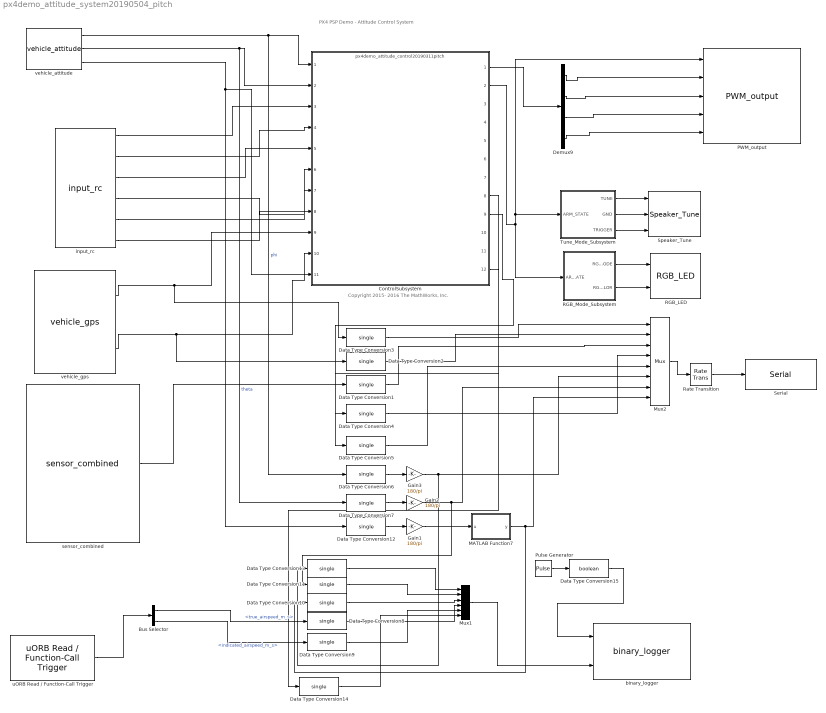
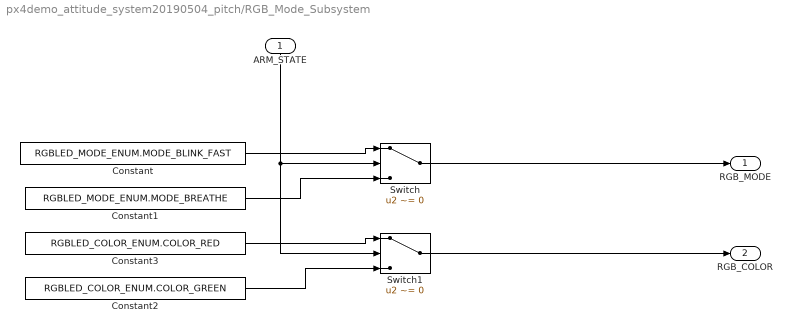
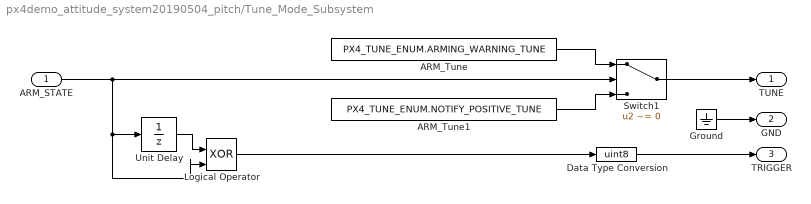
== matlab function px4demo_attitude_system20190504_pitch/MATLAB Function7 ==
function y = fcn(u)
if(u<=0)
    y=360+u;
else
    y=u
end

/*
 * Academic License - for use in teaching, academic research, and meeting
 * course requirements at degree granting institutions only.  Not for
 * government, commercial, or other organizational use.
 *
 * File: px4demo_attitude_system20190504_pitch.c
 *
 * Code generated for Simulink model 'px4demo_attitude_system20190504_pitch'.
 *
 * Model version                  : 1.173
 * Simulink Coder version         : 8.11 (R2016b) 25-Aug-2016
 * C/C++ source code generated on : Fri Mar 13 18:39:18 2020
 *
 * Target selection: ert.tlc
 * Embedded hardware selection: ARM Compatible->ARM Cortex
 * Code generation objectives: Unspecified
 * Validation result: Not run
 */

#include "px4demo_attitude_system20190504_pitch.h"
#include "px4demo_attitude_system20190504_pitch_private.h"
#define px4demo_attitude_system20_block (true)

const char *g_pwm_device = PWM_OUTPUT0_DEVICE_PATH;
int g_pwm_fd = -1;
bool g_pwm_enabled = false;
rtTimingBridge px4demo_attitude_sys_TimingBrdg;
const uint8_T px4demo_attitude_system20190504_pitch_U8GND = 0U;/* uint8_T ground */

/* Block signals (auto storage) */
B_px4demo_attitude_system2019_T px4demo_attitude_system201905_B;

/* Block states (auto storage) */
DW_px4demo_attitude_system201_T px4demo_attitude_system20190_DW;

/* Real-time model */
RT_MODEL_px4demo_attitude_sys_T px4demo_attitude_system20190_M_;
RT_MODEL_px4demo_attitude_sys_T *const px4demo_attitude_system20190_M =
  &px4demo_attitude_system20190_M_;
static void rate_scheduler(void);

/*
 *   This function updates active task flag for each subrate.
 * The function is called at model base rate, hence the
 * generated code self-manages all its subrates.
 */
static void rate_scheduler(void)
{
  /* Compute which subrates run during the next base time step.  Subrates
   * are an integer multiple of the base rate counter.  Therefore, the subtask
   * counter is reset when it reaches its limit (zero means run).
   */
  (px4demo_attitude_system20190_M->Timing.TaskCounters.TID[1])++;
  if ((px4demo_attitude_system20190_M->Timing.TaskCounters.TID[1]) > 24) {/* Sample time: [0.1s, 0.0s] */
    px4demo_attitude_system20190_M->Timing.TaskCounters.TID[1] = 0;
  }

  (px4demo_attitude_system20190_M->Timing.TaskCounters.TID[2])++;
  if ((px4demo_attitude_system20190_M->Timing.TaskCounters.TID[2]) > 74) {/* Sample time: [0.3s, 0.0s] */
    px4demo_attitude_system20190_M->Timing.TaskCounters.TID[2] = 0;
  }

  (px4demo_attitude_system20190_M->Timing.TaskCounters.TID[3])++;
  if ((px4demo_attitude_system20190_M->Timing.TaskCounters.TID[3]) > 124) {/* Sample time: [0.5s, 0.0s] */
    px4demo_attitude_system20190_M->Timing.TaskCounters.TID[3] = 0;
  }

  (px4demo_attitude_system20190_M->Timing.TaskCounters.TID[4])++;
  if ((px4demo_attitude_system20190_M->Timing.TaskCounters.TID[4]) > 2499) {/* Sample time: [10.0s, 0.0s] */
    px4demo_attitude_system20190_M->Timing.TaskCounters.TID[4] = 0;
  }
}

/* Model step function */
void px4demo_attitude_system20190504_pitch_step(void)
{
  static const char_T mlStrVer[8] = { 'M', 'W', 'L', 'O', 'G', 'V', '0', '1' };

  static const char_T b[28] = { 'C', 'L', 'O', 'S', 'I', 'N', 'G', ' ', 'f', 'i',
    'l', 'e', '.', ' ', 'c', 'o', 'u', 'n', 't', ' ', '=', ' ', '%', 'd', ' ',
    '%', 'c', '\x00' };

  static const char_T c[56] = { 'O', 'P', 'E', 'N', 'I', 'N', 'G', ' ', 'f', 'i',
    'l', 'e', ' ', '%', 's', ' ', 'v', 'e', 'c', 't', '_', 's', 'i', 'z', 'e',
    ' ', '%', 'd', ' ', 'e', 'l', 'e', 'm', '_', 's', 'i', 'z', 'e', ' ', '%',
    'd', ' ', 'n', 'u', 'm', 'R', 'e', 'c', 's', ' ', '%', 'd', ' ', '%', 'c',
    '\x00' };

  static const char_T e[15] = { '/', 'f', 's', '/', 'm', 'i', 'c', 'r', 'o', 's',
    'd', '/', 'l', 'o', 'g' };

  /* S-Function (sfun_px4_vehicle_attitude): '<Root>/vehicle_attitude' */
  {
    bool updated;
    orb_check(px4demo_attitude_system20190_DW.vehicle_attitude_vehicle_attitu.fd,
              &updated);
    if (updated) {
      struct vehicle_attitude_s raw;
      orb_copy(ORB_ID(vehicle_attitude),
               px4demo_attitude_system20190_DW.vehicle_attitude_vehicle_attitu.fd,
               &raw);

      /* read out the Roll value */
      px4demo_attitude_system201905_B.phi = raw.roll;// phi

      /* read out the Pitch value */
      px4demo_attitude_system201905_B.theta = raw.pitch;// theta

      /* read out the Yaw value */
      px4demo_attitude_system201905_B.vehicle_attitude_o3 = raw.yaw;// psi
    }
  }

  /* S-Function (sfun_px4_input_rc): '<Root>/input_rc' */
  {
    bool updated;
    orb_check(px4demo_attitude_system20190_DW.input_rc_input_rc_fd.fd, &updated);
    if (updated) {
      struct rc_input_values pwm_inputs;

      /* copy input_rc raw data into local buffer (uint16)*/
      orb_copy(ORB_ID(input_rc),
               px4demo_attitude_system20190_DW.input_rc_input_rc_fd.fd,
               &pwm_inputs);
      px4demo_attitude_system201905_B.input_rc_o1 = pwm_inputs.values[0];
      px4demo_attitude_system201905_B.input_rc_o2 = pwm_inputs.values[1];
      px4demo_attitude_system201905_B.input_rc_o3 = pwm_inputs.values[2];
      px4demo_attitude_system201905_B.input_rc_o4 = pwm_inputs.values[3];
      px4demo_attitude_system201905_B.input_rc_o5 = pwm_inputs.values[4];
      px4demo_attitude_system201905_B.input_rc_o6 = pwm_inputs.values[5];
    }
  }

  /* S-Function (sfun_px4_gps): '<Root>/vehicle_gps' */
  {
    int poll_ret;
    bool updated;
    orb_check(px4demo_attitude_system20190_DW.vehicle_gps_gps_fd.fd, &updated);
    if (updated) {
      /* obtained GPS data */
      struct vehicle_gps_position_s raw;

      /* copy sensors raw data into local buffer */
      orb_copy(ORB_ID(vehicle_gps_position),
               px4demo_attitude_system20190_DW.vehicle_gps_gps_fd.fd, &raw);

      /* read out Lat/Lon Values */
      px4demo_attitude_system201905_B.vehicle_gps_o1 = raw.lat;
      px4demo_attitude_system201905_B.vehicle_gps_o2 = raw.lon;
    }
  }

  /* ModelReference: '<Root>/ControlSubsystem' */
  px4demo_attitude_control2019031(&px4demo_attitude_system201905_B.phi,
    &px4demo_attitude_system201905_B.theta,
    &px4demo_attitude_system201905_B.input_rc_o1,
    &px4demo_attitude_system201905_B.input_rc_o2,
    &px4demo_attitude_system201905_B.input_rc_o3,
    &px4demo_attitude_system201905_B.input_rc_o4,
    &px4demo_attitude_system201905_B.input_rc_o5,
    &px4demo_attitude_system201905_B.input_rc_o6,
    &px4demo_attitude_system201905_B.vehicle_gps_o1,
    &px4demo_attitude_system201905_B.vehicle_gps_o2,
    &px4demo_attitude_system201905_B.ControlSubsystem_o1[0],
    &px4demo_attitude_system201905_B.ControlSubsystem_o2,
    &px4demo_attitude_system201905_B.ControlSubsystem_o10,
    &px4demo_attitude_system201905_B.ControlSubsystem_o11,
    &px4demo_attitude_system201905_B.ControlSubsystem_o12,
    &(px4demo_attitude_system20190_DW.ControlSubsystem_DWORK1.rtb),
    &(px4demo_attitude_system20190_DW.ControlSubsystem_DWORK1.rtdw));

  /* S-Function (sfun_px4_pwm): '<Root>/PWM_output' */
  if (px4demo_attitude_system201905_B.ControlSubsystem_o2 == true) {
    if (g_pwm_enabled == false) {
      int rc;

      /* arm system */
      rc = ioctl(g_pwm_fd, PWM_SERVO_ARM, 0);
      if (rc != OK)
        err(1,"PWM_SERVO_ARM");
      else {
        ioctl(g_pwm_fd, PWM_SERVO_SET(0), 900);
        ioctl(g_pwm_fd, PWM_SERVO_SET(1), 900);
        ioctl(g_pwm_fd, PWM_SERVO_SET(2), 900);
        ioctl(g_pwm_fd, PWM_SERVO_SET(3), 900);
        g_pwm_enabled = true;
        printf("***ARMED*** PWM fd = %d\n", g_pwm_fd);
      }
    }
  } else {
    if (g_pwm_enabled == true) {
      int rc;

      /* disarm system if enabled */
      ioctl(g_pwm_fd, PWM_SERVO_SET(0), 900);
      ioctl(g_pwm_fd, PWM_SERVO_SET(1), 900);
      ioctl(g_pwm_fd, PWM_SERVO_SET(2), 900);
      ioctl(g_pwm_fd, PWM_SERVO_SET(3), 900);
      rc = ioctl(g_pwm_fd, PWM_SERVO_DISARM, 0);
      g_pwm_enabled = false;
      if (rc != OK)
        err(1, "PWM_SERVO_DISARM");
      else
        printf("***DISARMED*** PWM fd = %d\n", g_pwm_fd);
    }
  }

  if (g_pwm_enabled) {
    /* output the PWM signals */
    ioctl(g_pwm_fd, PWM_SERVO_SET(0), (unsigned int)
          px4demo_attitude_system201905_B.ControlSubsystem_o1[0]);
    ioctl(g_pwm_fd, PWM_SERVO_SET(1), (unsigned int)
          px4demo_attitude_system201905_B.ControlSubsystem_o1[1]);
    ioctl(g_pwm_fd, PWM_SERVO_SET(2), (unsigned int)
          px4demo_attitude_system201905_B.ControlSubsystem_o1[2]);
    ioctl(g_pwm_fd, PWM_SERVO_SET(3), (unsigned int)
          px4demo_attitude_system201905_B.ControlSubsystem_o1[3]);
  }

  if (px4demo_attitude_system20190_M->Timing.TaskCounters.TID[3] == 0) {
    /* Switch: '<S2>/Switch' incorporates:
     *  Constant: '<S2>/Constant'
     *  Constant: '<S2>/Constant1'
     *  Constant: '<S2>/Constant2'
     *  Constant: '<S2>/Constant3'
     *  Switch: '<S2>/Switch1'
     */
    if (px4demo_attitude_system201905_B.ControlSubsystem_o2) {
      px4demo_attitude_system201905_B.Switch = MODE_BLINK_FAST;
      px4demo_attitude_system201905_B.Switch1 = COLOR_RED;
    } else {
      px4demo_attitude_system201905_B.Switch = MODE_BREATHE;
      px4demo_attitude_system201905_B.Switch1 = COLOR_GREEN;
    }

    /* End of Switch: '<S2>/Switch' */

    /* S-Function (sfun_px4_rgbled): '<Root>/RGB_LED' */
    ioctl(px4demo_attitude_system20190_DW.RGB_LED_rgbled_fd, RGBLED_SET_MODE,
          px4demo_attitude_system201905_B.Switch);
    ioctl(px4demo_attitude_system20190_DW.RGB_LED_rgbled_fd, RGBLED_SET_COLOR,
          px4demo_attitude_system201905_B.Switch1);
  }

  /* S-Function (sfun_px4_sensor_combined): '<Root>/sensor_combined' */
  {
    bool updated;
    orb_check(px4demo_attitude_system20190_DW.sensor_combined_sensor_fd.fd,
              &updated);
    if (updated) {
      /* obtained data sensor combined */
      struct sensor_combined_s raw;

      /* copy sensors raw data into local buffer */
      orb_copy(ORB_ID(sensor_combined),
               px4demo_attitude_system20190_DW.sensor_combined_sensor_fd.fd,
               &raw);

      /* read out the baro altimeter */
      px4demo_attitude_system201905_B.sensor_combined = (float)
        raw.baro_alt_meter[0];
    }
  }

  /* Gain: '<Root>/Gain3' */
  px4demo_attitude_system201905_B.Gain3 = 57.2957802F *
    px4demo_attitude_system201905_B.phi;

  /* Gain: '<Root>/Gain2' */
  px4demo_attitude_system201905_B.Gain2 = 57.2957802F *
    px4demo_attitude_system201905_B.theta;

  /* Gain: '<Root>/Gain1' */
  px4demo_attitude_system201905_B.Gain1 = 57.2957802F *
    px4demo_attitude_system201905_B.vehicle_attitude_o3;

  /* MATLAB Function: '<Root>/MATLAB Function7' */
  /* MATLAB Function 'MATLAB Function7': '<S1>:1' */
  if (px4demo_attitude_system201905_B.Gain1 <= 0.0F) {
    /* '<S1>:1:2' */
    /* '<S1>:1:3' */
    px4demo_attitude_system201905_B.Gain1 += 360.0F;
  } else {
    /* '<S1>:1:5' */
  }

  /* End of MATLAB Function: '<Root>/MATLAB Function7' */

  /* RateTransition: '<Root>/Rate Transition' incorporates:
   *  DataTypeConversion: '<Root>/Data Type Conversion2'
   *  DataTypeConversion: '<Root>/Data Type Conversion3'
   */
  if (px4demo_attitude_system20190_M->Timing.TaskCounters.TID[2] == 0) {
    px4demo_attitude_system201905_B.RateTransition_m[0] = (real32_T)
      px4demo_attitude_system201905_B.vehicle_gps_o1;
    px4demo_attitude_system201905_B.RateTransition_m[1] = (real32_T)
      px4demo_attitude_system201905_B.vehicle_gps_o2;
    px4demo_attitude_system201905_B.RateTransition_m[2] =
      px4demo_attitude_system201905_B.sensor_combined;
    px4demo_attitude_system201905_B.RateTransition_m[3] =
      px4demo_attitude_system2_ConstB.DataTypeConversion4;
    px4demo_attitude_system201905_B.RateTransition_m[4] =
      px4demo_attitude_system2_ConstB.DataTypeConversion5;
    px4demo_attitude_system201905_B.RateTransition_m[5] =
      px4demo_attitude_system201905_B.Gain3;
    px4demo_attitude_system201905_B.RateTransition_m[6] =
      px4demo_attitude_system201905_B.Gain2;
    px4demo_attitude_system201905_B.RateTransition_m[7] =
      px4demo_attitude_system201905_B.Gain1;

    /* Start for MATLABSystem: '<Root>/Serial' incorporates:
     *  DataTypeConversion: '<Root>/Data Type Conversion2'
     *  DataTypeConversion: '<Root>/Data Type Conversion3'
     *  MATLABSystem: '<Root>/Serial'
     */
    MW_writeSerial(px4demo_attitude_system20190_DW.obj.fh_index,
                   px4demo_attitude_system201905_B.RateTransition_m, 32U);
  }

  /* End of RateTransition: '<Root>/Rate Transition' */

  /* Switch: '<S3>/Switch1' incorporates:
   *  Constant: '<S3>/ARM_Tune'
   *  Constant: '<S3>/ARM_Tune1'
   */
  if (px4demo_attitude_system201905_B.ControlSubsystem_o2) {
    px4demo_attitude_system201905_B.Switch1_i = ARMING_WARNING_TUNE;
  } else {
    px4demo_attitude_system201905_B.Switch1_i = NOTIFY_POSITIVE_TUNE;
  }

  /* End of Switch: '<S3>/Switch1' */

  /* DataTypeConversion: '<S3>/Data Type Conversion' incorporates:
   *  Logic: '<S3>/Logical Operator'
   *  UnitDelay: '<S3>/Unit Delay'
   */
  px4demo_attitude_system201905_B.DataTypeConversion = (uint8_T)((int8_T)
    px4demo_attitude_system20190_DW.UnitDelay_DSTATE ^ (int8_T)
    px4demo_attitude_system201905_B.ControlSubsystem_o2);

  /* S-Function (sfun_px4_tune): '<Root>/Speaker_Tune' */
  if (px4demo_attitude_system20190_DW.Speaker_Tune_tune_fd == -1) {
    px4demo_attitude_system20190_DW.Speaker_Tune_tune_fd = open
      (TONEALARM0_DEVICE_PATH, O_WRONLY);
    if ((px4demo_attitude_system201905_B.DataTypeConversion > 0) &&
        (px4demo_attitude_system201905_B.DataTypeConversion !=
         px4demo_attitude_system20190_DW.Speaker_Tune_triggerState)) {
      if (px4demo_attitude_system201905_B.DataTypeConversion == 1) {
        ioctl(px4demo_attitude_system20190_DW.Speaker_Tune_tune_fd,
              TONE_SET_ALARM, px4demo_attitude_system201905_B.Switch1_i);
      } else if (px4demo_attitude_system201905_B.DataTypeConversion == 2) {
        write(px4demo_attitude_system20190_DW.Speaker_Tune_tune_fd, (uint8_T*)
              &px4demo_attitude_system20190504_pitch_U8GND, 1);
      }
    }

    // save the state of the trigger
    px4demo_attitude_system20190_DW.Speaker_Tune_triggerState =
      px4demo_attitude_system201905_B.DataTypeConversion;
  } else {
    if ((px4demo_attitude_system201905_B.DataTypeConversion > 0) &&
        (px4demo_attitude_system201905_B.DataTypeConversion !=
         px4demo_attitude_system20190_DW.Speaker_Tune_triggerState)) {
      if (px4demo_attitude_system201905_B.DataTypeConversion == 1) {
        ioctl(px4demo_attitude_system20190_DW.Speaker_Tune_tune_fd,
              TONE_SET_ALARM, px4demo_attitude_system201905_B.Switch1_i);
      } else if (px4demo_attitude_system201905_B.DataTypeConversion == 2) {
        write(px4demo_attitude_system20190_DW.Speaker_Tune_tune_fd, (uint8_T*)
              &px4demo_attitude_system20190504_pitch_U8GND, 1);
      }
    }

    // save the state of the trigger
    px4demo_attitude_system20190_DW.Speaker_Tune_triggerState =
      px4demo_attitude_system201905_B.DataTypeConversion;
  }

  if (px4demo_attitude_system20190_M->Timing.TaskCounters.TID[4] == 0) {
    /* DiscretePulseGenerator: '<Root>/Pulse Generator' */
    px4demo_attitude_system201905_B.PulseGenerator =
      ((px4demo_attitude_system20190_DW.clockTickCounter < 5) &&
       (px4demo_attitude_system20190_DW.clockTickCounter >= 0));
    if (px4demo_attitude_system20190_DW.clockTickCounter >= 9) {
      px4demo_attitude_system20190_DW.clockTickCounter = 0;
    } else {
      px4demo_attitude_system20190_DW.clockTickCounter++;
    }

    /* End of DiscretePulseGenerator: '<Root>/Pulse Generator' */

    /* DataTypeConversion: '<Root>/Data Type Conversion15' */
    px4demo_attitude_system201905_B.DataTypeConversion15 =
      (px4demo_attitude_system201905_B.PulseGenerator != 0);
  }

  /* S-Function (sfun_px4_uorb_read_topic): '<Root>/uORB Read // Function-Call Trigger' */
  {
    //interval val: 1
    bool updated;
    orb_check(px4demo_attitude_system20190_DW.uORBReadFunctionCallTrigger_uOR.fd,
              &updated);
    if (updated) {
      /* obtained uorb data */
      /* copy sensors raw data into local buffer */
      orb_copy(ORB_ID(airspeed),
               px4demo_attitude_system20190_DW.uORBReadFunctionCallTrigger_uOR.fd,
               &px4demo_attitude_system201905_B.uORBReadFunctionCallTrigger);
    }
  }

  /* SignalConversion: '<S5>/TmpSignal ConversionAt SFunction Inport2' incorporates:
   *  DataTypeConversion: '<Root>/Data Type Conversion14'
   *  MATLAB Function: '<S4>/binary_logger1'
   */
  px4demo_attitude_system201905_B.TmpSignalConversionAtSFunct[0] =
    px4demo_attitude_system201905_B.Gain3;
  px4demo_attitude_system201905_B.TmpSignalConversionAtSFunct[1] =
    px4demo_attitude_system201905_B.Gain2;
  px4demo_attitude_system201905_B.TmpSignalConversionAtSFunct[2] =
    px4demo_attitude_system201905_B.Gain1;
  px4demo_attitude_system201905_B.TmpSignalConversionAtSFunct[3] =
    px4demo_attitude_system201905_B.uORBReadFunctionCallTrigger.true_airspeed_m_s;
  px4demo_attitude_system201905_B.TmpSignalConversionAtSFunct[4] =
    px4demo_attitude_system201905_B.uORBReadFunctionCallTrigger.indicated_airspeed_m_s;
  px4demo_attitude_system201905_B.TmpSignalConversionAtSFunct[5] =
    px4demo_attitude_system201905_B.ControlSubsystem_o12;

  /* MATLAB Function: '<S4>/binary_logger1' */
  /* MATLAB Function 'binary_logger/binary_logger1': '<S5>:1' */
  /* '<S5>:1:39' */
  /* '<S5>:1:87' */
  /* '<S5>:1:47' */
  /* '<S5>:1:40' */
  /* '<S5>:1:39' */
  /* '<S5>:1:38' */
  /*  Binary Logger */
  /*  Note: All data needs to be of the same type (e.g. double) */
  /*  Header information format: */
  /*            String "MWLOGV##" */
  /*            Time/Date 4 bytes (time()) */
  /*            Number of Signals per record Logged 1 byte (256 max) */
  /*            Data Type of Signals Logged  1 byte (1-10) */
  /*            Number of bytes per record 2 bytes (65535 max) */
  /*  This does NOT include the number of data sets logged.   */
  /*  i.e. The Reader is responsible for reading until EOF. */
  /*  MathWorks Pilot Engineering 2015 */
  /*  Steve Kuznicki */
  if (px4demo_attitude_system201905_B.DataTypeConversion15) {
    /* '<S5>:1:32' */
    if (!px4demo_attitude_system20190_DW.isopen) {
      /* '<S5>:1:33' */
      /* '<S5>:1:35' */
      px4demo_attitude_system20190_DW.elem_size = 4U;

      /* '<S5>:1:36' */
      px4demo_attitude_system201905_B.elem_type = 2U;

      /* '<S5>:1:37' */
      px4demo_attitude_system20190_DW.vect_size = 6U;
      for (px4demo_attitude_system201905_B.PulseGenerator = 0;
           px4demo_attitude_system201905_B.PulseGenerator < 56;
           px4demo_attitude_system201905_B.PulseGenerator++) {
        px4demo_attitude_system201905_B.c[px4demo_attitude_system201905_B.PulseGenerator]
          = c[px4demo_attitude_system201905_B.PulseGenerator];
      }

      for (px4demo_attitude_system201905_B.PulseGenerator = 0;
           px4demo_attitude_system201905_B.PulseGenerator < 15;
           px4demo_attitude_system201905_B.PulseGenerator++) {
        px4demo_attitude_system201905_B.e[px4demo_attitude_system201905_B.PulseGenerator]
          = e[px4demo_attitude_system201905_B.PulseGenerator];
      }

      px4demo_attitude_system201905_B.e[15] = '_';
      px4demo_attitude_system201905_B.e[16] = (char_T)
        px4demo_attitude_system20190_DW.lognumstr;
      px4demo_attitude_system201905_B.e[17] = '.';
      px4demo_attitude_system201905_B.e[18] = 'b';
      px4demo_attitude_system201905_B.e[19] = 'i';
      px4demo_attitude_system201905_B.e[20] = 'n';
      px4demo_attitude_system201905_B.e[21] = '\x00';
      printf(px4demo_attitude_system201905_B.c,
             px4demo_attitude_system201905_B.e, (uint32_T)
             px4demo_attitude_system20190_DW.vect_size, (uint32_T)
             px4demo_attitude_system20190_DW.elem_size, 1000U, 10U);

      /* '<S5>:1:40' */
      for (px4demo_attitude_system201905_B.PulseGenerator = 0;
           px4demo_attitude_system201905_B.PulseGenerator < 15;
           px4demo_attitude_system201905_B.PulseGenerator++) {
        px4demo_attitude_system201905_B.e[px4demo_attitude_system201905_B.PulseGenerator]
          = e[px4demo_attitude_system201905_B.PulseGenerator];
      }

      px4demo_attitude_system201905_B.e[15] = '_';
      px4demo_attitude_system201905_B.e[16] = (char_T)
        px4demo_attitude_system20190_DW.lognumstr;
      px4demo_attitude_system201905_B.e[17] = '.';
      px4demo_attitude_system201905_B.e[18] = 'b';
      px4demo_attitude_system201905_B.e[19] = 'i';
      px4demo_attitude_system201905_B.e[20] = 'n';
      px4demo_attitude_system201905_B.e[21] = '\x00';
      px4demo_attitude_system201905_B.d[0] = 'w';
      px4demo_attitude_system201905_B.d[1] = 'b';
      px4demo_attitude_system201905_B.d[2] = '\x00';
      px4demo_attitude_system20190_DW.fp = fopen
        (px4demo_attitude_system201905_B.e, px4demo_attitude_system201905_B.d);

      /* '<S5>:1:41' */
      px4demo_attitude_system20190_DW.lognumstr++;

      /* '<S5>:1:42' */
      px4demo_attitude_system20190_DW.isflushed = false;

      /* '<S5>:1:43' */
      px4demo_attitude_system20190_DW.count = 0U;

      /* '<S5>:1:44' */
      px4demo_attitude_system20190_DW.isopen = true;

      /*  Write header information here */
      /*  header token + version */
      /* '<S5>:1:47' */
      fwrite(mlStrVer, 1U, 8.0, px4demo_attitude_system20190_DW.fp);

      /*  date/time */
      /* '<S5>:1:52' */
      px4demo_attitude_system201905_B.tm = time
        (&px4demo_attitude_system201905_B.tmptr);
      fwrite(&px4demo_attitude_system201905_B.tm, 4U, 1U,
             px4demo_attitude_system20190_DW.fp);

      /*  number of elements in each record */
      fwrite(&px4demo_attitude_system20190_DW.vect_size, 1U, 1U,
             px4demo_attitude_system20190_DW.fp);

      /*  data type of the elements */
      fwrite(&px4demo_attitude_system201905_B.elem_type, 1U, 1U,
             px4demo_attitude_system20190_DW.fp);

      /*  size of each record in bytes */
      /* '<S5>:1:59' */
      px4demo_attitude_system201905_B.tmptr = (uint32_T)
        px4demo_attitude_system20190_DW.elem_size *
        px4demo_attitude_system20190_DW.vect_size;
      if (px4demo_attitude_system201905_B.tmptr > 65535U) {
        px4demo_attitude_system201905_B.tmptr = 65535U;
      }

      px4demo_attitude_system201905_B.recSize = (uint16_T)
        px4demo_attitude_system201905_B.tmptr;
      fwrite(&px4demo_attitude_system201905_B.recSize, 2U, 1U,
             px4demo_attitude_system20190_DW.fp);
    }

    /*  cache data in memory or use fwrite */
    fwrite(px4demo_attitude_system201905_B.TmpSignalConversionAtSFunct,
           px4demo_attitude_system20190_DW.elem_size,
           px4demo_attitude_system20190_DW.vect_size,
           px4demo_attitude_system20190_DW.fp);

    /* '<S5>:1:72' */
    px4demo_attitude_system201905_B.tmptr =
      px4demo_attitude_system20190_DW.count + 1U;
    if (px4demo_attitude_system201905_B.tmptr <
        px4demo_attitude_system20190_DW.count) {
      px4demo_attitude_system201905_B.tmptr = MAX_uint32_T;
    }

    px4demo_attitude_system20190_DW.count =
      px4demo_attitude_system201905_B.tmptr;

    /*  check for data count limit */
    if (px4demo_attitude_system20190_DW.count >= 1000U) {
      /* '<S5>:1:74' */
      fflush(px4demo_attitude_system20190_DW.fp);

      /* '<S5>:1:81' */
      px4demo_attitude_system20190_DW.isflushed = false;

      /* '<S5>:1:82' */
      px4demo_attitude_system20190_DW.count = 0U;
    }
  } else {
    if (px4demo_attitude_system20190_DW.isopen) {
      /* '<S5>:1:85' */
      if (!px4demo_attitude_system20190_DW.isflushed) {
        /* '<S5>:1:86' */
        for (px4demo_attitude_system201905_B.PulseGenerator = 0;
             px4demo_attitude_system201905_B.PulseGenerator < 28;
             px4demo_attitude_system201905_B.PulseGenerator++) {
          px4demo_attitude_system201905_B.b[px4demo_attitude_system201905_B.PulseGenerator]
            = b[px4demo_attitude_system201905_B.PulseGenerator];
        }

        printf(px4demo_attitude_system201905_B.b,
               px4demo_attitude_system20190_DW.count, 10U);
        fflush(px4demo_attitude_system20190_DW.fp);

        /* '<S5>:1:95' */
        px4demo_attitude_system20190_DW.isflushed = true;
      }

      fclose(px4demo_attitude_system20190_DW.fp);
    }

    /* '<S5>:1:99' */
    px4demo_attitude_system20190_DW.isopen = false;

    /* '<S5>:1:100' */
    px4demo_attitude_system20190_DW.count = 0U;
  }

  /* Update for UnitDelay: '<S3>/Unit Delay' */
  px4demo_attitude_system20190_DW.UnitDelay_DSTATE =
    px4demo_attitude_system201905_B.ControlSubsystem_o2;
  rate_scheduler();
}
